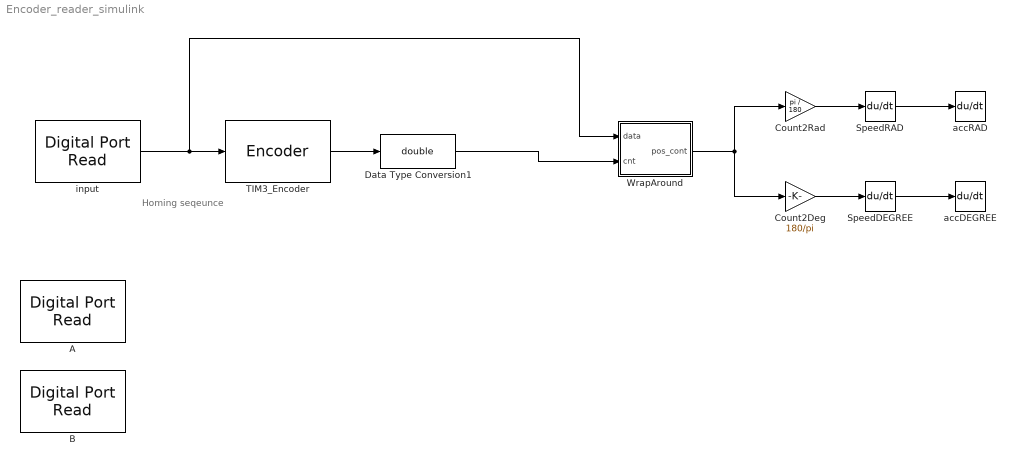
== matlab function Encoder_reader_simulink/WrapAround ==
function pos_cont = WrapAround(data,cnt)
persistent last_cnt acc
if isempty(last_cnt)
    last_cnt = int32(cnt);
    acc = int64(0);
end
%homing sequence for wrap around
if data == 1
    last_cnt = int32(0);
    acc = int64(0);
end

MAX_COUNT = int32(61439);
RANGE = int32(MAX_COUNT) + int32(1);   % 61440
HALF = RANGE/2;

delta = int32(cnt) - last_cnt;

% detect wrap
if delta > HALF
    delta = delta - RANGE;   % clockwise large positive -> negative jump (wrap backward)
elseif delta < -HALF
    delta = delta + RANGE;   % counterclockwise large negative -> positive jump (wrap forward)
end

acc = acc + int64(delta);   % accumulate corrected change
pos_cont = double(acc);
last_cnt = int32(cnt);
end

/*
 * Academic License - for use in teaching, academic research, and meeting
 * course requirements at degree granting institutions only.  Not for
 * government, commercial, or other organizational use.
 *
 * File: Encoder_reader_simulink.c
 *
 * Code generated for Simulink model 'Encoder_reader_simulink'.
 *
 * Model version                  : 1.11
 * Simulink Coder version         : 25.1 (R2025a) 21-Nov-2024
 * C/C++ source code generated on : Mon Oct 13 18:13:48 2025
 *
 * Target selection: ert.tlc
 * Embedded hardware selection: ARM Compatible->ARM Cortex-M
 * Code generation objectives: Unspecified
 * Validation result: Not run
 */

#include "Encoder_reader_simulink.h"
#include "Encoder_reader_simulink_types.h"
#include "rtwtypes.h"
#include "stm_timer_ll.h"
#include "Encoder_reader_simulink_private.h"

/* Block signals (default storage) */
B_Encoder_reader_simulink_T Encoder_reader_simulink_B;

/* Block states (default storage) */
DW_Encoder_reader_simulink_T Encoder_reader_simulink_DW;

/* Real-time model */
static RT_MODEL_Encoder_reader_simul_T Encoder_reader_simulink_M_;
RT_MODEL_Encoder_reader_simul_T *const Encoder_reader_simulink_M =
  &Encoder_reader_simulink_M_;

/* Forward declaration for local functions */
static void Enc_EncoderBlockForG4_setupImpl(stm32cube_blocks_EncoderBlock_T *obj);
static void Enc_EncoderBlockForG4_setupImpl(stm32cube_blocks_EncoderBlock_T *obj)
{
  uint8_T ChannelInfo;
  TIM_Type_T b;
  boolean_T isSlaveModeTriggerEnabled;

  /* Start for MATLABSystem: '<Root>/TIM3_Encoder' */
  b.PeripheralPtr = TIM3;
  b.isCenterAlignedMode = false;

  /* Start for MATLABSystem: '<Root>/TIM3_Encoder' */
  b.repetitionCounter = 0U;
  obj->TimerHandle = Timer_Handle_Init(&b);
  enableTimerInterrupts(obj->TimerHandle, 0);
  ChannelInfo = ENABLE_CH;

  /* Start for MATLABSystem: '<Root>/TIM3_Encoder' */
  enableTimerChannel1(obj->TimerHandle, ChannelInfo);
  enableTimerChannel2(obj->TimerHandle, ChannelInfo);
  isSlaveModeTriggerEnabled = isSlaveTriggerModeEnabled(obj->TimerHandle);
  if (!isSlaveModeTriggerEnabled) {
    /* Start for MATLABSystem: '<Root>/TIM3_Encoder' */
    enableCounter(obj->TimerHandle, false);
  }
}

/* Model step function */
void Encoder_reader_simulink_step(void)
{
  {
    real_T lastTime;
    real_T tmp;
    real_T *lastU;
    int32_T delta;
    uint32_T pinReadLoc;

    /* MATLABSystem: '<S6>/Digital Port Read' */
    pinReadLoc = LL_GPIO_ReadInputPort(GPIOA);

    /* MATLABSystem: '<S6>/Digital Port Read' */
    Encoder_reader_simulink_B.DigitalPortRead_d = ((pinReadLoc & 64U) != 0U);

    /* MATLABSystem: '<S8>/Digital Port Read' */
    pinReadLoc = LL_GPIO_ReadInputPort(GPIOA);

    /* MATLABSystem: '<S8>/Digital Port Read' */
    Encoder_reader_simulink_B.DigitalPortRead_n = ((pinReadLoc & 16U) != 0U);

    /* MATLABSystem: '<S10>/Digital Port Read' */
    pinReadLoc = LL_GPIO_ReadInputPort(GPIOC);

    /* MATLABSystem: '<S10>/Digital Port Read' */
    Encoder_reader_simulink_B.DigitalPortRead = ((pinReadLoc & 8192U) != 0U);

    /* MATLABSystem: '<Root>/TIM3_Encoder' */
    resetCounterAccToInput(Encoder_reader_simulink_DW.obj_p.TimerHandle,
      Encoder_reader_simulink_B.DigitalPortRead);

    /* MATLABSystem: '<Root>/TIM3_Encoder' */
    Encoder_reader_simulink_B.TIM3_Encoder = getTimerCounterValueForG4
      (Encoder_reader_simulink_DW.obj_p.TimerHandle, false, NULL);

    /* MATLAB Function: '<Root>/WrapAround' incorporates:
     *  DataTypeConversion: '<Root>/Data Type Conversion1'
     */
    if (!Encoder_reader_simulink_DW.last_cnt_not_empty) {
      pinReadLoc = Encoder_reader_simulink_B.TIM3_Encoder;
      if (Encoder_reader_simulink_B.TIM3_Encoder > 2147483647U) {
        pinReadLoc = 2147483647U;
      }

      Encoder_reader_simulink_DW.last_cnt = (int32_T)pinReadLoc;
      Encoder_reader_simulink_DW.last_cnt_not_empty = true;
    }

    if (Encoder_reader_simulink_B.DigitalPortRead) {
      Encoder_reader_simulink_DW.last_cnt = 0;
      Encoder_reader_simulink_DW.acc = 0LL;
    }

    pinReadLoc = Encoder_reader_simulink_B.TIM3_Encoder;
    if (Encoder_reader_simulink_B.TIM3_Encoder > 2147483647U) {
      pinReadLoc = 2147483647U;
    }

    if (Encoder_reader_simulink_DW.last_cnt < (int32_T)pinReadLoc - MAX_int32_T)
    {
      delta = MAX_int32_T;
    } else {
      delta = (int32_T)pinReadLoc - Encoder_reader_simulink_DW.last_cnt;
    }

    if (delta > 30720) {
      delta -= 61440;
    } else if (delta < -30720) {
      delta += 61440;
    }

    if ((Encoder_reader_simulink_DW.acc < 0LL) && (delta < MIN_int64_T
         - Encoder_reader_simulink_DW.acc)) {
      Encoder_reader_simulink_DW.acc = MIN_int64_T;
    } else if ((Encoder_reader_simulink_DW.acc > 0LL) && (delta > MAX_int64_T
                - Encoder_reader_simulink_DW.acc)) {
      Encoder_reader_simulink_DW.acc = MAX_int64_T;
    } else {
      Encoder_reader_simulink_DW.acc += delta;
    }

    Encoder_reader_simulink_B.pos_cont = (real_T)Encoder_reader_simulink_DW.acc;
    pinReadLoc = Encoder_reader_simulink_B.TIM3_Encoder;
    if (Encoder_reader_simulink_B.TIM3_Encoder > 2147483647U) {
      pinReadLoc = 2147483647U;
    }

    Encoder_reader_simulink_DW.last_cnt = (int32_T)pinReadLoc;

    /* End of MATLAB Function: '<Root>/WrapAround' */

    /* Gain: '<Root>/Count2Deg' */
    Encoder_reader_simulink_B.Count2Deg = 57.295779513082323 *
      Encoder_reader_simulink_B.pos_cont;

    /* Derivative: '<Root>/SpeedDEGREE' incorporates:
     *  Derivative: '<Root>/SpeedRAD'
     *  Derivative: '<Root>/accDEGREE'
     *  Derivative: '<Root>/accRAD'
     */
    tmp = Encoder_reader_simulink_M->Timing.t[0];
    if ((Encoder_reader_simulink_DW.TimeStampA >= tmp) &&
        (Encoder_reader_simulink_DW.TimeStampB >= tmp)) {
      /* Derivative: '<Root>/SpeedDEGREE' */
      Encoder_reader_simulink_B.SpeedDEGREE = 0.0;
    } else {
      lastTime = Encoder_reader_simulink_DW.TimeStampA;
      lastU = &Encoder_reader_simulink_DW.LastUAtTimeA;
      if (Encoder_reader_simulink_DW.TimeStampA <
          Encoder_reader_simulink_DW.TimeStampB) {
        if (Encoder_reader_simulink_DW.TimeStampB < tmp) {
          lastTime = Encoder_reader_simulink_DW.TimeStampB;
          lastU = &Encoder_reader_simulink_DW.LastUAtTimeB;
        }
      } else if (Encoder_reader_simulink_DW.TimeStampA >= tmp) {
        lastTime = Encoder_reader_simulink_DW.TimeStampB;
        lastU = &Encoder_reader_simulink_DW.LastUAtTimeB;
      }

      /* Derivative: '<Root>/SpeedDEGREE' */
      Encoder_reader_simulink_B.SpeedDEGREE =
        (Encoder_reader_simulink_B.Count2Deg - *lastU) / (tmp - lastTime);
    }

    /* End of Derivative: '<Root>/SpeedDEGREE' */
    /* Derivative: '<Root>/accDEGREE' */
    if ((Encoder_reader_simulink_DW.TimeStampA_b >= tmp) &&
        (Encoder_reader_simulink_DW.TimeStampB_b >= tmp)) {
      /* Derivative: '<Root>/accDEGREE' */
      Encoder_reader_simulink_B.accDEGREE = 0.0;
    } else {
      lastTime = Encoder_reader_simulink_DW.TimeStampA_b;
      lastU = &Encoder_reader_simulink_DW.LastUAtTimeA_d;
      if (Encoder_reader_simulink_DW.TimeStampA_b <
          Encoder_reader_simulink_DW.TimeStampB_b) {
        if (Encoder_reader_simulink_DW.TimeStampB_b < tmp) {
          lastTime = Encoder_reader_simulink_DW.TimeStampB_b;
          lastU = &Encoder_reader_simulink_DW.LastUAtTimeB_l;
        }
      } else if (Encoder_reader_simulink_DW.TimeStampA_b >= tmp) {
        lastTime = Encoder_reader_simulink_DW.TimeStampB_b;
        lastU = &Encoder_reader_simulink_DW.LastUAtTimeB_l;
      }

      /* Derivative: '<Root>/accDEGREE' */
      Encoder_reader_simulink_B.accDEGREE =
        (Encoder_reader_simulink_B.SpeedDEGREE - *lastU) / (tmp - lastTime);
    }

    /* Gain: '<Root>/Count2Rad' */
    Encoder_reader_simulink_B.Count2Rad = 0.017453292519943295 *
      Encoder_reader_simulink_B.pos_cont;

    /* Derivative: '<Root>/SpeedRAD' */
    if ((Encoder_reader_simulink_DW.TimeStampA_o >= tmp) &&
        (Encoder_reader_simulink_DW.TimeStampB_l >= tmp)) {
      /* Derivative: '<Root>/SpeedRAD' */
      Encoder_reader_simulink_B.SpeedRAD = 0.0;
    } else {
      lastTime = Encoder_reader_simulink_DW.TimeStampA_o;
      lastU = &Encoder_reader_simulink_DW.LastUAtTimeA_e;
      if (Encoder_reader_simulink_DW.TimeStampA_o <
          Encoder_reader_simulink_DW.TimeStampB_l) {
        if (Encoder_reader_simulink_DW.TimeStampB_l < tmp) {
          lastTime = Encoder_reader_simulink_DW.TimeStampB_l;
          lastU = &Encoder_reader_simulink_DW.LastUAtTimeB_h;
        }
      } else if (Encoder_reader_simulink_DW.TimeStampA_o >= tmp) {
        lastTime = Encoder_reader_simulink_DW.TimeStampB_l;
        lastU = &Encoder_reader_simulink_DW.LastUAtTimeB_h;
      }

      /* Derivative: '<Root>/SpeedRAD' */
      Encoder_reader_simulink_B.SpeedRAD = (Encoder_reader_simulink_B.Count2Rad
        - *lastU) / (tmp - lastTime);
    }

    /* Derivative: '<Root>/accRAD' */
    if ((Encoder_reader_simulink_DW.TimeStampA_p >= tmp) &&
        (Encoder_reader_simulink_DW.TimeStampB_n >= tmp)) {
      /* Derivative: '<Root>/accRAD' */
      Encoder_reader_simulink_B.accRAD = 0.0;
    } else {
      lastTime = Encoder_reader_simulink_DW.TimeStampA_p;
      lastU = &Encoder_reader_simulink_DW.LastUAtTimeA_g;
      if (Encoder_reader_simulink_DW.TimeStampA_p <
          Encoder_reader_simulink_DW.TimeStampB_n) {
        if (Encoder_reader_simulink_DW.TimeStampB_n < tmp) {
          lastTime = Encoder_reader_simulink_DW.TimeStampB_n;
          lastU = &Encoder_reader_simulink_DW.LastUAtTimeB_c;
        }
      } else if (Encoder_reader_simulink_DW.TimeStampA_p >= tmp) {
        lastTime = Encoder_reader_simulink_DW.TimeStampB_n;
        lastU = &Encoder_reader_simulink_DW.LastUAtTimeB_c;
      }

      /* Derivative: '<Root>/accRAD' */
      Encoder_reader_simulink_B.accRAD = (Encoder_reader_simulink_B.SpeedRAD -
        *lastU) / (tmp - lastTime);
    }
  }

  {
    real_T *lastU;

    /* Update for Derivative: '<Root>/SpeedDEGREE' */
    if (Encoder_reader_simulink_DW.TimeStampA == (rtInf)) {
      Encoder_reader_simulink_DW.TimeStampA =
        Encoder_reader_simulink_M->Timing.t[0];
      lastU = &Encoder_reader_simulink_DW.LastUAtTimeA;
    } else if (Encoder_reader_simulink_DW.TimeStampB == (rtInf)) {
      Encoder_reader_simulink_DW.TimeStampB =
        Encoder_reader_simulink_M->Timing.t[0];
      lastU = &Encoder_reader_simulink_DW.LastUAtTimeB;
    } else if (Encoder_reader_simulink_DW.TimeStampA <
               Encoder_reader_simulink_DW.TimeStampB) {
      Encoder_reader_simulink_DW.TimeStampA =
        Encoder_reader_simulink_M->Timing.t[0];
      lastU = &Encoder_reader_simulink_DW.LastUAtTimeA;
    } else {
      Encoder_reader_simulink_DW.TimeStampB =
        Encoder_reader_simulink_M->Timing.t[0];
      lastU = &Encoder_reader_simulink_DW.LastUAtTimeB;
    }

    *lastU = Encoder_reader_simulink_B.Count2Deg;

    /* End of Update for Derivative: '<Root>/SpeedDEGREE' */

    /* Update for Derivative: '<Root>/accDEGREE' */
    if (Encoder_reader_simulink_DW.TimeStampA_b == (rtInf)) {
      Encoder_reader_simulink_DW.TimeStampA_b =
        Encoder_reader_simulink_M->Timing.t[0];
      lastU = &Encoder_reader_simulink_DW.LastUAtTimeA_d;
    } else if (Encoder_reader_simulink_DW.TimeStampB_b == (rtInf)) {
      Encoder_reader_simulink_DW.TimeStampB_b =
        Encoder_reader_simulink_M->Timing.t[0];
      lastU = &Encoder_reader_simulink_DW.LastUAtTimeB_l;
    } else if (Encoder_reader_simulink_DW.TimeStampA_b <
               Encoder_reader_simulink_DW.TimeStampB_b) {
      Encoder_reader_simulink_DW.TimeStampA_b =
        Encoder_reader_simulink_M->Timing.t[0];
      lastU = &Encoder_reader_simulink_DW.LastUAtTimeA_d;
    } else {
      Encoder_reader_simulink_DW.TimeStampB_b =
        Encoder_reader_simulink_M->Timing.t[0];
      lastU = &Encoder_reader_simulink_DW.LastUAtTimeB_l;
    }

    *lastU = Encoder_reader_simulink_B.SpeedDEGREE;

    /* End of Update for Derivative: '<Root>/accDEGREE' */

    /* Update for Derivative: '<Root>/SpeedRAD' */
    if (Encoder_reader_simulink_DW.TimeStampA_o == (rtInf)) {
      Encoder_reader_simulink_DW.TimeStampA_o =
        Encoder_reader_simulink_M->Timing.t[0];
      lastU = &Encoder_reader_simulink_DW.LastUAtTimeA_e;
    } else if (Encoder_reader_simulink_DW.TimeStampB_l == (rtInf)) {
      Encoder_reader_simulink_DW.TimeStampB_l =
        Encoder_reader_simulink_M->Timing.t[0];
      lastU = &Encoder_reader_simulink_DW.LastUAtTimeB_h;
    } else if (Encoder_reader_simulink_DW.TimeStampA_o <
               Encoder_reader_simulink_DW.TimeStampB_l) {
      Encoder_reader_simulink_DW.TimeStampA_o =
        Encoder_reader_simulink_M->Timing.t[0];
      lastU = &Encoder_reader_simulink_DW.LastUAtTimeA_e;
    } else {
      Encoder_reader_simulink_DW.TimeStampB_l =
        Encoder_reader_simulink_M->Timing.t[0];
      lastU = &Encoder_reader_simulink_DW.LastUAtTimeB_h;
    }

    *lastU = Encoder_reader_simulink_B.Count2Rad;

    /* End of Update for Derivative: '<Root>/SpeedRAD' */

    /* Update for Derivative: '<Root>/accRAD' */
    if (Encoder_reader_simulink_DW.TimeStampA_p == (rtInf)) {
      Encoder_reader_simulink_DW.TimeStampA_p =
        Encoder_reader_simulink_M->Timing.t[0];
      lastU = &Encoder_reader_simulink_DW.LastUAtTimeA_g;
    } else if (Encoder_reader_simulink_DW.TimeStampB_n == (rtInf)) {
      Encoder_reader_simulink_DW.TimeStampB_n =
        Encoder_reader_simulink_M->Timing.t[0];
      lastU = &Encoder_reader_simulink_DW.LastUAtTimeB_c;
    } else if (Encoder_reader_simulink_DW.TimeStampA_p <
               Encoder_reader_simulink_DW.TimeStampB_n) {
      Encoder_reader_simulink_DW.TimeStampA_p =
        Encoder_reader_simulink_M->Timing.t[0];
      lastU = &Encoder_reader_simulink_DW.LastUAtTimeA_g;
    } else {
      Encoder_reader_simulink_DW.TimeStampB_n =
        Encoder_reader_simulink_M->Timing.t[0];
      lastU = &Encoder_reader_simulink_DW.LastUAtTimeB_c;
    }

    *lastU = Encoder_reader_simulink_B.SpeedRAD;

    /* End of Update for Derivative: '<Root>/accRAD' */
  }

  {                                    /* Sample time: [0.001s, 0.0s] */
    extmodeErrorCode_T errorCode = EXTMODE_SUCCESS;
    extmodeSimulationTime_T extmodeTime = (extmodeSimulationTime_T)
      ((Encoder_reader_simulink_M->Timing.clockTick1) * 0.001);

    /* Trigger External Mode event */
    errorCode = extmodeEvent(1, extmodeTime);
    if (errorCode != EXTMODE_SUCCESS) {
      /* Code to handle External Mode event errors
         may be added here */
    }
  }

  /* Update absolute time for base rate */
  /* The "clockTick0" counts the number of times the code of this task has
   * been executed. The absolute time is the multiplication of "clockTick0"
   * and "Timing.stepSize0". Size of "clockTick0" ensures timer will not
   * overflow during the application lifespan selected.
   */
  Encoder_reader_simulink_M->Timing.t[0] =
    ((time_T)(++Encoder_reader_simulink_M->Timing.clockTick0)) *
    Encoder_reader_simulink_M->Timing.stepSize0;

  {
    /* Update absolute timer for sample time: [0.001s, 0.0s] */
    /* The "clockTick1" counts the number of times the code of this task has
     * been executed. The resolution of this integer timer is 0.001, which is the step size
     * of the task. Size of "clockTick1" ensures timer will not overflow during the
     * application lifespan selected.
     */
    Encoder_reader_simulink_M->Timing.clockTick1++;
  }
}
